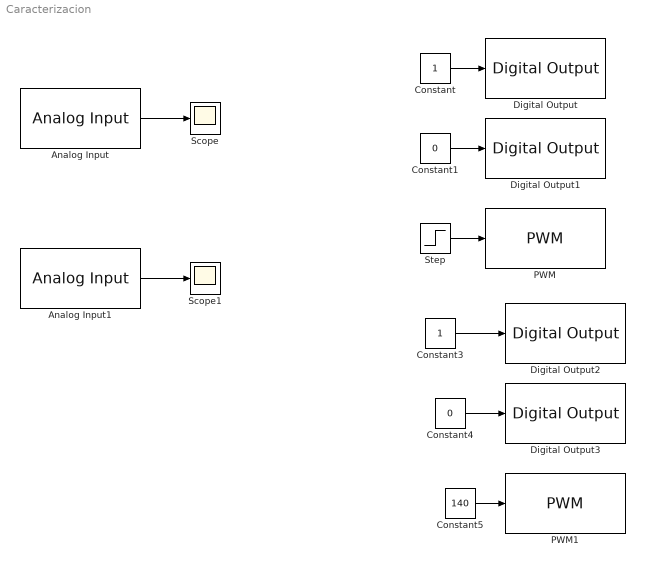
/*
 * File: Caracterizacion.c
 *
 * Code generated for Simulink model 'Caracterizacion'.
 *
 * Model version                  : 1.1
 * Simulink Coder version         : 8.11 (R2016b) 25-Aug-2016
 * C/C++ source code generated on : Mon May 15 09:38:01 2017
 *
 * Target selection: ert.tlc
 * Embedded hardware selection: Atmel->AVR
 * Code generation objectives: Unspecified
 * Validation result: Not run
 */

#include "Caracterizacion.h"
#include "Caracterizacion_private.h"
#define Caracterizacion_PinNumber      (2.0)
#define Caracterizacion_PinNumber_d    (3.0)
#define Caracterizacion_PinNumber_dg   (7.0)
#define Caracterizacion_PinNumber_dgd  (8.0)

/* Block states (auto storage) */
DW_Caracterizacion_T Caracterizacion_DW;

/* Real-time model */
RT_MODEL_Caracterizacion_T Caracterizacion_M_;
RT_MODEL_Caracterizacion_T *const Caracterizacion_M = &Caracterizacion_M_;
static void rate_monotonic_scheduler(void);

/*
 * Set which subrates need to run this base step (base rate always runs).
 * This function must be called prior to calling the model step function
 * in order to "remember" which rates need to run this base step.  The
 * buffering of events allows for overlapping preemption.
 */
void Caracterizacion_SetEventsForThisBaseStep(boolean_T *eventFlags)
{
  /* Task runs when its counter is zero, computed via rtmStepTask macro */
  eventFlags[2] = ((boolean_T)rtmStepTask(Caracterizacion_M, 2));
}

/*
 *   This function updates active task flag for each subrate
 * and rate transition flags for tasks that exchange data.
 * The function assumes rate-monotonic multitasking scheduler.
 * The function must be called at model base rate so that
 * the generated code self-manages all its subrates and rate
 * transition flags.
 */
static void rate_monotonic_scheduler(void)
{
  /* Compute which subrates run during the next base time step.  Subrates
   * are an integer multiple of the base rate counter.  Therefore, the subtask
   * counter is reset when it reaches its limit (zero means run).
   */
  (Caracterizacion_M->Timing.TaskCounters.TID[2])++;
  if ((Caracterizacion_M->Timing.TaskCounters.TID[2]) > 1) {/* Sample time: [0.1s, 0.0s] */
    Caracterizacion_M->Timing.TaskCounters.TID[2] = 0;
  }
}

/* Model step function for TID0 */
void Caracterizacion_step0(void)       /* Sample time: [0.0s, 0.0s] */
{
  real_T currentTime;
  uint8_T currentTime_0;

  {                                    /* Sample time: [0.0s, 0.0s] */
    rate_monotonic_scheduler();
  }

  /* DataTypeConversion: '<S1>/Data Type Conversion' incorporates:
   *  Constant: '<Root>/Constant'
   */
  if (Caracterizacion_P.Constant_Value < 256.0) {
    if (Caracterizacion_P.Constant_Value >= 0.0) {
      currentTime_0 = (uint8_T)Caracterizacion_P.Constant_Value;
    } else {
      currentTime_0 = 0U;
    }
  } else {
    currentTime_0 = MAX_uint8_T;
  }

  /* End of DataTypeConversion: '<S1>/Data Type Conversion' */

  /* Start for MATLABSystem: '<S1>/Digital Output' incorporates:
   *  MATLABSystem: '<S1>/Digital Output'
   */
  writeDigitalPin((uint8_T)Caracterizacion_PinNumber, currentTime_0);

  /* DataTypeConversion: '<S2>/Data Type Conversion' incorporates:
   *  Constant: '<Root>/Constant1'
   */
  if (Caracterizacion_P.Constant1_Value < 256.0) {
    if (Caracterizacion_P.Constant1_Value >= 0.0) {
      currentTime_0 = (uint8_T)Caracterizacion_P.Constant1_Value;
    } else {
      currentTime_0 = 0U;
    }
  } else {
    currentTime_0 = MAX_uint8_T;
  }

  /* End of DataTypeConversion: '<S2>/Data Type Conversion' */

  /* Start for MATLABSystem: '<S2>/Digital Output' incorporates:
   *  MATLABSystem: '<S2>/Digital Output'
   */
  writeDigitalPin((uint8_T)Caracterizacion_PinNumber_d, currentTime_0);

  /* DataTypeConversion: '<S3>/Data Type Conversion' incorporates:
   *  Constant: '<Root>/Constant3'
   */
  if (Caracterizacion_P.Constant3_Value < 256.0) {
    if (Caracterizacion_P.Constant3_Value >= 0.0) {
      currentTime_0 = (uint8_T)Caracterizacion_P.Constant3_Value;
    } else {
      currentTime_0 = 0U;
    }
  } else {
    currentTime_0 = MAX_uint8_T;
  }

  /* End of DataTypeConversion: '<S3>/Data Type Conversion' */

  /* Start for MATLABSystem: '<S3>/Digital Output' incorporates:
   *  MATLABSystem: '<S3>/Digital Output'
   */
  writeDigitalPin((uint8_T)Caracterizacion_PinNumber_dg, currentTime_0);

  /* DataTypeConversion: '<S4>/Data Type Conversion' incorporates:
   *  Constant: '<Root>/Constant4'
   */
  if (Caracterizacion_P.Constant4_Value < 256.0) {
    if (Caracterizacion_P.Constant4_Value >= 0.0) {
      currentTime_0 = (uint8_T)Caracterizacion_P.Constant4_Value;
    } else {
      currentTime_0 = 0U;
    }
  } else {
    currentTime_0 = MAX_uint8_T;
  }

  /* End of DataTypeConversion: '<S4>/Data Type Conversion' */

  /* Start for MATLABSystem: '<S4>/Digital Output' incorporates:
   *  MATLABSystem: '<S4>/Digital Output'
   */
  writeDigitalPin((uint8_T)Caracterizacion_PinNumber_dgd, currentTime_0);

  /* DataTypeConversion: '<S6>/Data Type Conversion' incorporates:
   *  Constant: '<Root>/Constant5'
   */
  if (Caracterizacion_P.Constant5_Value < 256.0) {
    if (Caracterizacion_P.Constant5_Value >= 0.0) {
      currentTime_0 = (uint8_T)Caracterizacion_P.Constant5_Value;
    } else {
      currentTime_0 = 0U;
    }
  } else {
    currentTime_0 = MAX_uint8_T;
  }

  /* End of DataTypeConversion: '<S6>/Data Type Conversion' */

  /* S-Function (arduinoanalogoutput_sfcn): '<S6>/PWM' */
  MW_analogWrite(Caracterizacion_P.PWM_pinNumber, currentTime_0);

  /* Step: '<Root>/Step' */
  currentTime = Caracterizacion_M->Timing.t[0];
  if (currentTime < Caracterizacion_P.Step_Time) {
    currentTime = Caracterizacion_P.Step_Y0;
  } else {
    currentTime = Caracterizacion_P.Step_YFinal;
  }

  /* End of Step: '<Root>/Step' */

  /* DataTypeConversion: '<S5>/Data Type Conversion' */
  if (currentTime < 256.0) {
    if (currentTime >= 0.0) {
      currentTime_0 = (uint8_T)currentTime;
    } else {
      currentTime_0 = 0U;
    }
  } else {
    currentTime_0 = MAX_uint8_T;
  }

  /* End of DataTypeConversion: '<S5>/Data Type Conversion' */

  /* S-Function (arduinoanalogoutput_sfcn): '<S5>/PWM' */
  MW_analogWrite(Caracterizacion_P.PWM_pinNumber_f, currentTime_0);

  /* Update absolute time */
  /* The "clockTick0" counts the number of times the code of this task has
   * been executed. The absolute time is the multiplication of "clockTick0"
   * and "Timing.stepSize0". Size of "clockTick0" ensures timer will not
   * overflow during the application lifespan selected.
   */
  Caracterizacion_M->Timing.t[0] =
    (++Caracterizacion_M->Timing.clockTick0) *
    Caracterizacion_M->Timing.stepSize0;

  /* Update absolute time */
  /* The "clockTick1" counts the number of times the code of this task has
   * been executed. The resolution of this integer timer is 0.05, which is the step size
   * of the task. Size of "clockTick1" ensures timer will not overflow during the
   * application lifespan selected.
   */
  Caracterizacion_M->Timing.clockTick1++;
}

/* Model step function for TID2 */
void Caracterizacion_step2(void)       /* Sample time: [0.1s, 0.0s] */
{
  /* S-Function (arduinoanaloginput_sfcn): '<Root>/Analog Input' */
  MW_analogRead(Caracterizacion_P.AnalogInput_p1);

  /* S-Function (arduinoanaloginput_sfcn): '<Root>/Analog Input1' */
  MW_analogRead(Caracterizacion_P.AnalogInput1_p1);
}
